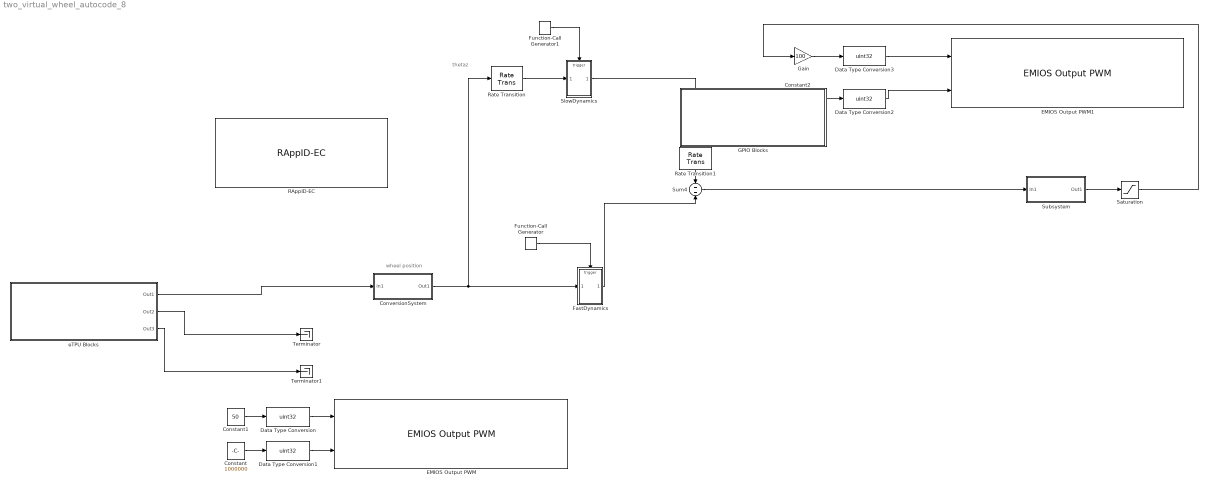
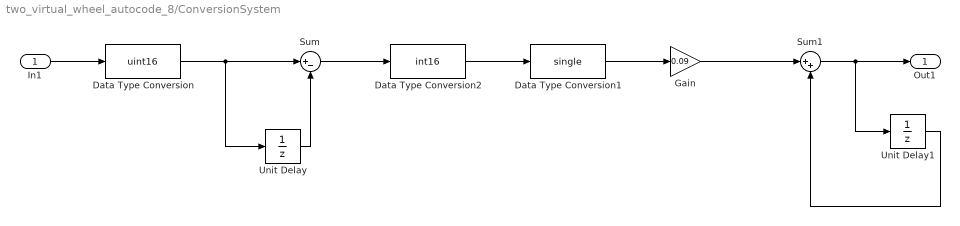
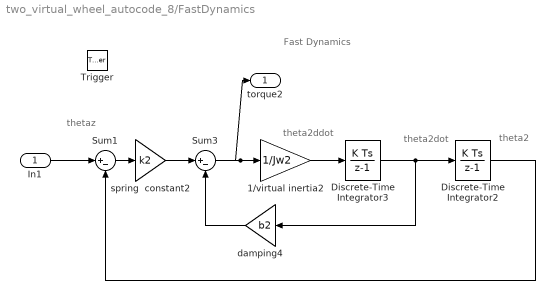
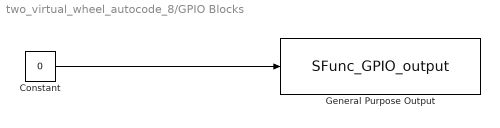
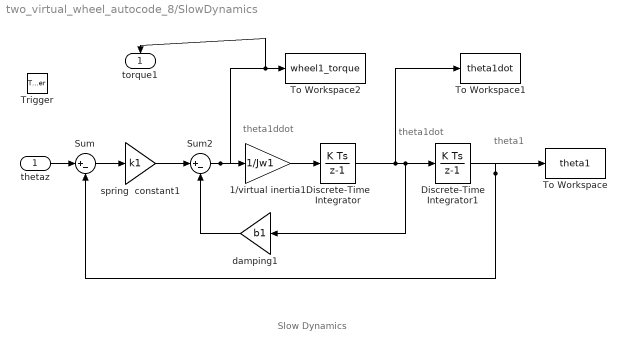
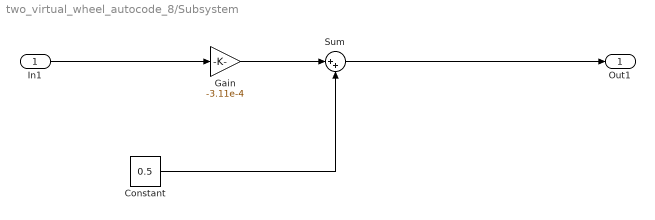
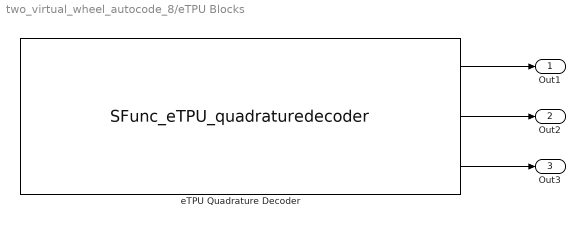
/*
 * File: two_virtual_wheel_autocode_8.c
 *
 * Code generated for Simulink model 'two_virtual_wheel_autocode_8'.
 *
 * Model version                  : 1.103
 * Simulink Coder version         : 8.1 (R2011b) 08-Jul-2011
 * TLC version                    : 8.1 (Jul  9 2011)
 * C/C++ source code generated on : Thu Sep 21 16:40:35 2017
 *
 * Target selection: rappid.tlc
 * Embedded hardware selection: 32-bit Generic
 * Emulation hardware selection:
 *    Differs from embedded hardware (MATLAB Host)
 * Code generation objectives: Unspecified
 * Validation result: Not run
 */

#include "two_virtual_wheel_autocode_8.h"
#include "two_virtual_wheel_autocode_8_private.h"

/* Block signals (auto storage) */
BlockIO_two_virtual_wheel_autoc two_virtual_wheel_autocode_8_B;

/* Block states (auto storage) */
D_Work_two_virtual_wheel_autoco two_virtual_wheel_autocod_DWork;

/* Real-time model */
RT_MODEL_two_virtual_wheel_auto two_virtual_wheel_autocode_8_M_;
RT_MODEL_two_virtual_wheel_auto *const two_virtual_wheel_autocode_8_M =
  &two_virtual_wheel_autocode_8_M_;
static void rate_monotonic_scheduler(void);

/*
 * Set which subrates need to run this base step (base rate always runs).
 * This function must be called prior to calling the model step function
 * in order to "remember" which rates need to run this base step.  The
 * buffering of events allows for overlapping preemption.
 */
void two_virtual_wheel_autocode_8_SetEventsForThisBaseStep(boolean_T *eventFlags)
{
  /* Task runs when its counter is zero, computed via rtmStepTask macro */
  eventFlags[1] = ((boolean_T)rtmStepTask(two_virtual_wheel_autocode_8_M, 1));
}

/* rate_monotonic_scheduler */
static void rate_monotonic_scheduler(void)
{
  /* To ensure a deterministic data transfer between two rates,
   * data is transferred at the priority of a fast task and the frequency
   * of the slow task.  The following flags indicate when the data transfer
   * happens.  That is, a rate interaction flag is set true when both rates
   * will run, and false otherwise.
   */

  /* tid 0 shares data with slower tid rate: 1 */
  two_virtual_wheel_autocode_8_M->Timing.RateInteraction.TID0_1 =
    (two_virtual_wheel_autocode_8_M->Timing.TaskCounters.TID[1] == 0);

  /* Compute which subrates run during the next base time step.  Subrates
   * are an integer multiple of the base rate counter.  Therefore, the subtask
   * counter is reset when it reaches its limit (zero means run).
   */
  (two_virtual_wheel_autocode_8_M->Timing.TaskCounters.TID[1])++;
  if ((two_virtual_wheel_autocode_8_M->Timing.TaskCounters.TID[1]) > 9) {/* Sample time: [0.02s, 0.0s] */
    two_virtual_wheel_autocode_8_M->Timing.TaskCounters.TID[1] = 0;
  }
}

/* Model step function for TID0 */
void two_virtual_wheel_autocode_8_step0(void) /* Sample time: [0.002s, 0.0s] */
{
  uint16_T rtb_DataTypeConversion;
  real32_T rtb_Sum1;
  real32_T Sum;
  real_T u;

  {                                    /* Sample time: [0.002s, 0.0s] */
    rate_monotonic_scheduler();
  }

  /* S-Function (SFunc_EMIOS_opwfm): '<Root>/EMIOS Output PWM' */

  /*Generate the Output PWM*/
  emios_gen_opwfm_fnc(12, two_virtual_wheel_autocode_8_P.Constant1_Value,
                      two_virtual_wheel_autocode_8_P.Constant_Value_j, 128,1);

  /* RateTransition: '<Root>/Rate Transition1' */
  if (two_virtual_wheel_autocode_8_M->Timing.RateInteraction.TID0_1) {
    two_virtual_wheel_autocode_8_B.RateTransition1 =
      two_virtual_wheel_autocod_DWork.RateTransition1_Buffer0;
  }

  /* End of RateTransition: '<Root>/Rate Transition1' */

  /* S-Function (SFunc_eTPU_quadraturedecoder): '<S7>/eTPU Quadrature Decoder' */
  {
    two_virtual_wheel_autocode_8_B.eTPUQuadratureDecoder_o1 = (int32_t)
      ((fs_etpu_qd_get_pc(3)*4)/4);
    if (fs_etpu_qd_get_period(3)==0) {
      two_virtual_wheel_autocode_8_B.eTPUQuadratureDecoder_o2 = 0;
    } else {
      two_virtual_wheel_autocode_8_B.eTPUQuadratureDecoder_o2 = (int32_t) ((60 *
        3.2E+7)/(fs_etpu_qd_get_period(3) * (4000/4)));/* lines on motor = pcincrements_per_rev/4 */
    }

    two_virtual_wheel_autocode_8_B.eTPUQuadratureDecoder_o3 = (int8_t)
      fs_etpu_qd_get_direction(3);
  }

  /* DataTypeConversion: '<S1>/Data Type Conversion' */
  rtb_DataTypeConversion = (uint16_T)
    two_virtual_wheel_autocode_8_B.eTPUQuadratureDecoder_o1;

  /* Sum: '<S1>/Sum1' incorporates:
   *  DataTypeConversion: '<S1>/Data Type Conversion1'
   *  DataTypeConversion: '<S1>/Data Type Conversion2'
   *  Gain: '<S1>/Gain'
   *  Sum: '<S1>/Sum'
   *  UnitDelay: '<S1>/Unit Delay'
   *  UnitDelay: '<S1>/Unit Delay1'
   */
  rtb_Sum1 = (real32_T)(int16_T)(uint16_T)(rtb_DataTypeConversion -
    two_virtual_wheel_autocod_DWork.UnitDelay_DSTATE) *
    two_virtual_wheel_autocode_8_P.Gain_Gain_k +
    two_virtual_wheel_autocod_DWork.UnitDelay1_DSTATE;

  /* S-Function (fcncallgen): '<Root>/Function-Call Generator' incorporates:
   *  SubSystem: '<Root>/FastDynamics'
   */
  two_virtual_wheel_autocod_DWork.FastDynamics_ELAPS_T =
    two_virtual_wheel_autocode_8_M->Timing.clockTick0 -
    two_virtual_wheel_autocod_DWork.FastDynamics_PREV_T;
  two_virtual_wheel_autocod_DWork.FastDynamics_PREV_T =
    two_virtual_wheel_autocode_8_M->Timing.clockTick0;

  /* Sum: '<S2>/Sum3' incorporates:
   *  DiscreteIntegrator: '<S2>/Discrete-Time Integrator2'
   *  DiscreteIntegrator: '<S2>/Discrete-Time Integrator3'
   *  Gain: '<S2>/damping4'
   *  Gain: '<S2>/spring  constant2'
   *  Sum: '<S2>/Sum1'
   */
  Sum = (rtb_Sum1 -
         two_virtual_wheel_autocod_DWork.DiscreteTimeIntegrator2_DSTATE) *
    two_virtual_wheel_autocode_8_P.springconstant2_Gain -
    two_virtual_wheel_autocode_8_P.damping4_Gain *
    two_virtual_wheel_autocod_DWork.DiscreteTimeIntegrator3_DSTATE;

  /* Update for DiscreteIntegrator: '<S2>/Discrete-Time Integrator2' incorporates:
   *  DiscreteIntegrator: '<S2>/Discrete-Time Integrator3'
   */
  two_virtual_wheel_autocod_DWork.DiscreteTimeIntegrator2_DSTATE = (real32_T)
    ((real_T)two_virtual_wheel_autocode_8_P.DiscreteTimeIntegrator2_gainval *
     (real_T)two_virtual_wheel_autocod_DWork.FastDynamics_ELAPS_T)
    * two_virtual_wheel_autocod_DWork.DiscreteTimeIntegrator3_DSTATE +
    two_virtual_wheel_autocod_DWork.DiscreteTimeIntegrator2_DSTATE;

  /* Update for DiscreteIntegrator: '<S2>/Discrete-Time Integrator3' incorporates:
   *  Gain: '<S2>/1//virtual inertia2'
   */
  two_virtual_wheel_autocod_DWork.DiscreteTimeIntegrator3_DSTATE = (real32_T)
    ((real_T)two_virtual_wheel_autocode_8_P.DiscreteTimeIntegrator3_gainval *
     (real_T)two_virtual_wheel_autocod_DWork.FastDynamics_ELAPS_T)
    * (two_virtual_wheel_autocode_8_P.virtualinertia2_Gain * Sum) +
    two_virtual_wheel_autocod_DWork.DiscreteTimeIntegrator3_DSTATE;

  /* Sum: '<S6>/Sum' incorporates:
   *  Constant: '<S6>/Constant'
   *  Gain: '<S6>/Gain'
   *  Sum: '<Root>/Sum4'
   */
  u = (real_T)(((0.0F - two_virtual_wheel_autocode_8_B.RateTransition1) - Sum) *
               two_virtual_wheel_autocode_8_P.Gain_Gain_n) +
    two_virtual_wheel_autocode_8_P.Constant_Value;

  /* DataTypeConversion: '<Root>/Data Type Conversion3' incorporates:
   *  Gain: '<Root>/Gain'
   *  Saturate: '<Root>/Saturation'
   */
  u = floor((u >= two_virtual_wheel_autocode_8_P.Saturation_UpperSat ?
             two_virtual_wheel_autocode_8_P.Saturation_UpperSat : u <=
             two_virtual_wheel_autocode_8_P.Saturation_LowerSat ?
             two_virtual_wheel_autocode_8_P.Saturation_LowerSat : u) *
            two_virtual_wheel_autocode_8_P.Gain_Gain);
  if (rtIsNaN(u) || rtIsInf(u)) {
    u = 0.0;
  } else {
    u = fmod(u, 4.294967296E+9);
  }

  two_virtual_wheel_autocode_8_B.DataTypeConversion3 = u < 0.0 ? (uint32_T)
    -(int32_T)(uint32_T)-u : (uint32_T)u;

  /* End of DataTypeConversion: '<Root>/Data Type Conversion3' */

  /* DataTypeConversion: '<Root>/Data Type Conversion2' incorporates:
   *  Constant: '<Root>/Constant2'
   */
  u = floor(two_virtual_wheel_autocode_8_P.Constant2_Value);
  if (rtIsNaN(u) || rtIsInf(u)) {
    u = 0.0;
  } else {
    u = fmod(u, 4.294967296E+9);
  }

  two_virtual_wheel_autocode_8_B.DataTypeConversion2 = u < 0.0 ? (uint32_T)
    -(int32_T)(uint32_T)-u : (uint32_T)u;

  /* End of DataTypeConversion: '<Root>/Data Type Conversion2' */

  /* S-Function (SFunc_EMIOS_opwfm): '<Root>/EMIOS Output PWM1' */

  /*Generate the Output PWM*/
  emios_gen_opwfm_fnc(0, two_virtual_wheel_autocode_8_B.DataTypeConversion3,
                      two_virtual_wheel_autocode_8_B.DataTypeConversion2, 128,1);

  /* RateTransition: '<Root>/Rate Transition' */
  if (two_virtual_wheel_autocode_8_M->Timing.RateInteraction.TID0_1) {
    two_virtual_wheel_autocode_8_B.RateTransition = rtb_Sum1;
  }

  /* End of RateTransition: '<Root>/Rate Transition' */

  /* S-Function (SFunc_GPIO_output): '<S3>/General Purpose Output' */

  /* Pin Data Output Signal */
  gpo_writedata_fnc(205, two_virtual_wheel_autocode_8_P.Constant_Value_i);/* GPIO Pin Data Output Registers */

  /* Update for UnitDelay: '<S1>/Unit Delay' */
  two_virtual_wheel_autocod_DWork.UnitDelay_DSTATE = rtb_DataTypeConversion;

  /* Update for UnitDelay: '<S1>/Unit Delay1' */
  two_virtual_wheel_autocod_DWork.UnitDelay1_DSTATE = rtb_Sum1;

  /* Update absolute time */
  /* The "clockTick0" counts the number of times the code of this task has
   * been executed. The resolution of this integer timer is 0.002, which is the step size
   * of the task. Size of "clockTick0" ensures timer will not overflow during the
   * application lifespan selected.
   */
  two_virtual_wheel_autocode_8_M->Timing.clockTick0++;
}

/* Model step function for TID1 */
void two_virtual_wheel_autocode_8_step1(void) /* Sample time: [0.02s, 0.0s] */
{
  real32_T Sum;

  /* S-Function (fcncallgen): '<Root>/Function-Call Generator1' incorporates:
   *  SubSystem: '<Root>/SlowDynamics'
   */
  two_virtual_wheel_autocod_DWork.SlowDynamics_ELAPS_T =
    two_virtual_wheel_autocode_8_M->Timing.clockTick1 -
    two_virtual_wheel_autocod_DWork.SlowDynamics_PREV_T;
  two_virtual_wheel_autocod_DWork.SlowDynamics_PREV_T =
    two_virtual_wheel_autocode_8_M->Timing.clockTick1;

  /* Sum: '<S5>/Sum2' incorporates:
   *  DiscreteIntegrator: '<S5>/Discrete-Time Integrator'
   *  DiscreteIntegrator: '<S5>/Discrete-Time Integrator1'
   *  Gain: '<S5>/damping1'
   *  Gain: '<S5>/spring  constant1'
   *  Sum: '<S5>/Sum'
   */
  Sum = (two_virtual_wheel_autocode_8_B.RateTransition -
         two_virtual_wheel_autocod_DWork.DiscreteTimeIntegrator1_DSTATE) *
    two_virtual_wheel_autocode_8_P.springconstant1_Gain -
    two_virtual_wheel_autocode_8_P.damping1_Gain *
    two_virtual_wheel_autocod_DWork.DiscreteTimeIntegrator_DSTATE;

  /* Update for DiscreteIntegrator: '<S5>/Discrete-Time Integrator1' incorporates:
   *  DiscreteIntegrator: '<S5>/Discrete-Time Integrator'
   */
  two_virtual_wheel_autocod_DWork.DiscreteTimeIntegrator1_DSTATE = (real32_T)
    ((real_T)two_virtual_wheel_autocode_8_P.DiscreteTimeIntegrator1_gainval *
     (real_T)two_virtual_wheel_autocod_DWork.SlowDynamics_ELAPS_T)
    * two_virtual_wheel_autocod_DWork.DiscreteTimeIntegrator_DSTATE +
    two_virtual_wheel_autocod_DWork.DiscreteTimeIntegrator1_DSTATE;

  /* Update for DiscreteIntegrator: '<S5>/Discrete-Time Integrator' incorporates:
   *  Gain: '<S5>/1//virtual inertia1'
   */
  two_virtual_wheel_autocod_DWork.DiscreteTimeIntegrator_DSTATE = (real32_T)
    ((real_T)two_virtual_wheel_autocode_8_P.DiscreteTimeIntegrator_gainval *
     (real_T)two_virtual_wheel_autocod_DWork.SlowDynamics_ELAPS_T)
    * (two_virtual_wheel_autocode_8_P.virtualinertia1_Gain * Sum) +
    two_virtual_wheel_autocod_DWork.DiscreteTimeIntegrator_DSTATE;

  /* Update for RateTransition: '<Root>/Rate Transition1' */
  two_virtual_wheel_autocod_DWork.RateTransition1_Buffer0 = Sum;

  /* Update absolute time */
  /* The "clockTick1" counts the number of times the code of this task has
   * been executed. The resolution of this integer timer is 0.02, which is the step size
   * of the task. Size of "clockTick1" ensures timer will not overflow during the
   * application lifespan selected.
   */
  two_virtual_wheel_autocode_8_M->Timing.clockTick1++;
}

void two_virtual_wheel_autocode_8_step(int_T tid)
{
  switch (tid) {
   case 0 :
    two_virtual_wheel_autocode_8_step0();
    break;

   case 1 :
    two_virtual_wheel_autocode_8_step1();
    break;

   default :
    break;
  }
}
